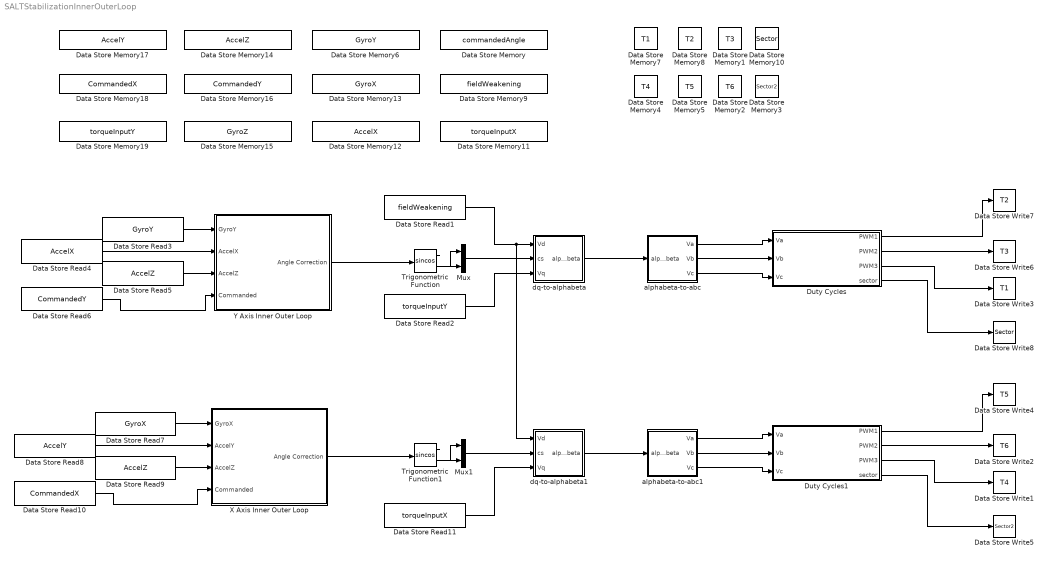
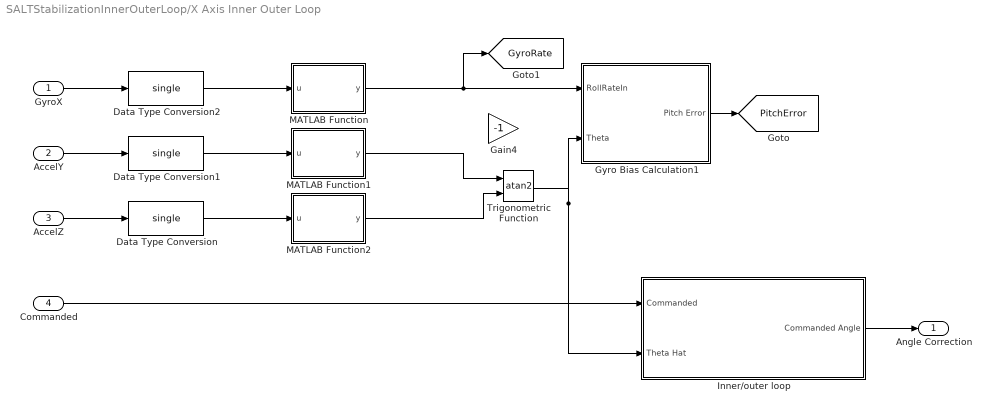
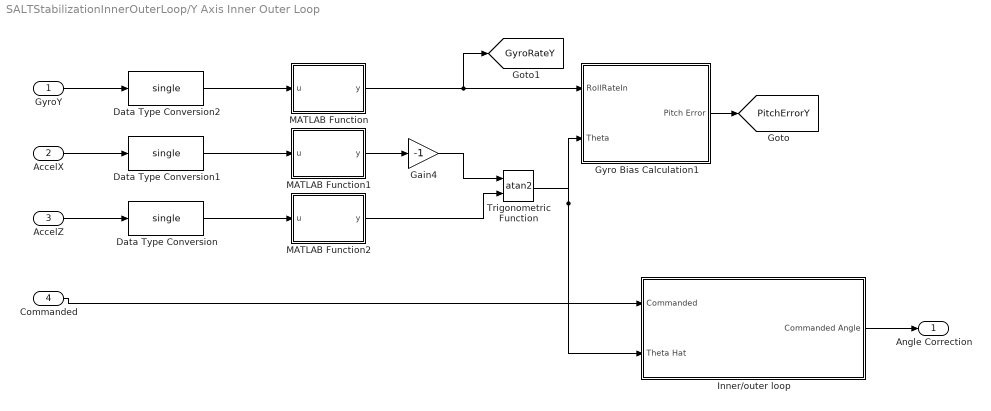
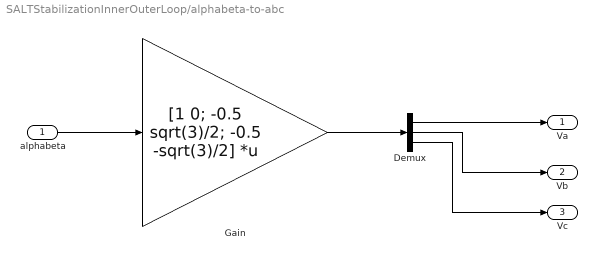
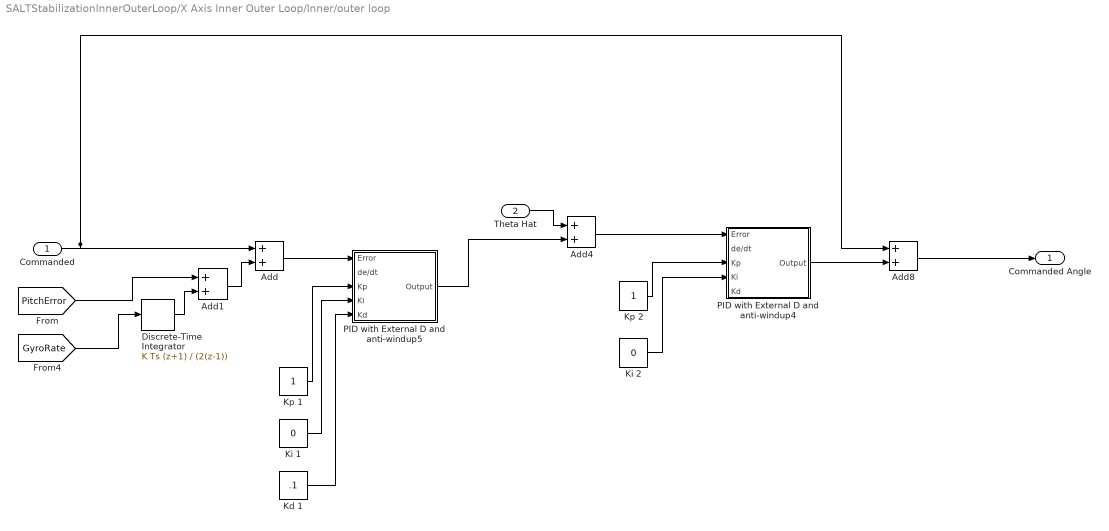
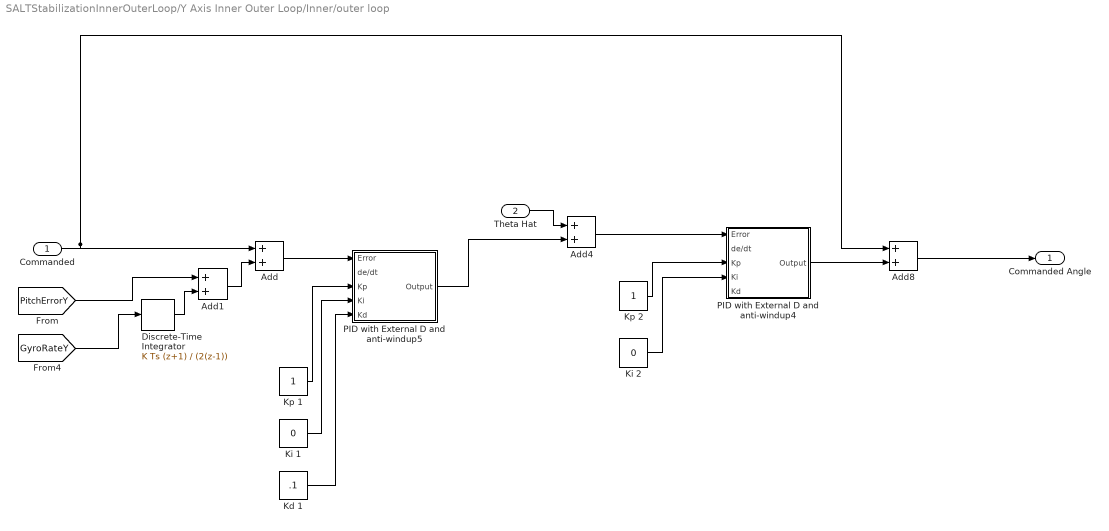
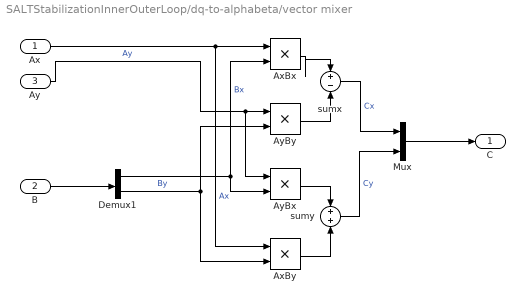
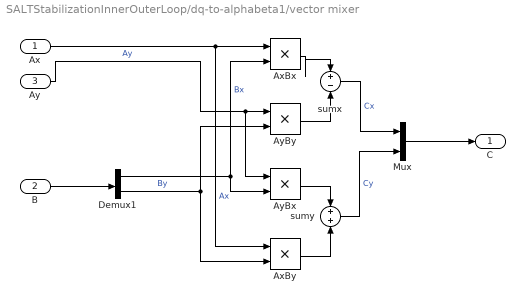
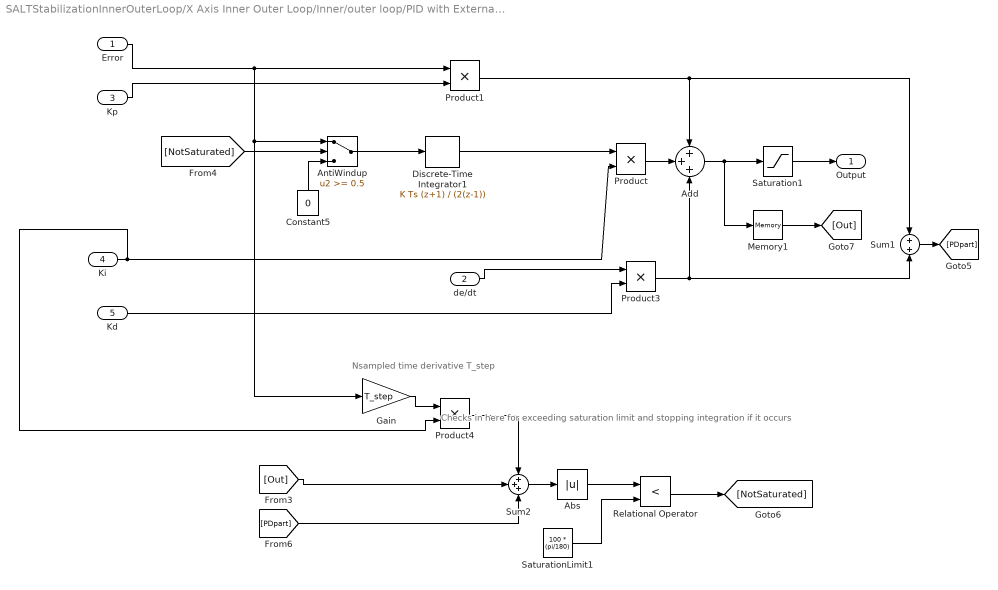
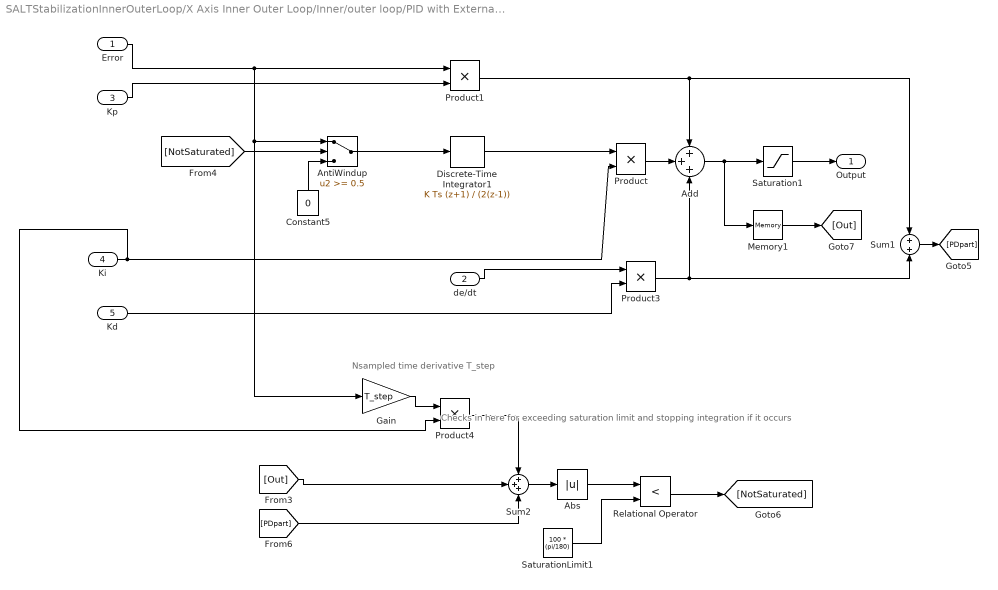
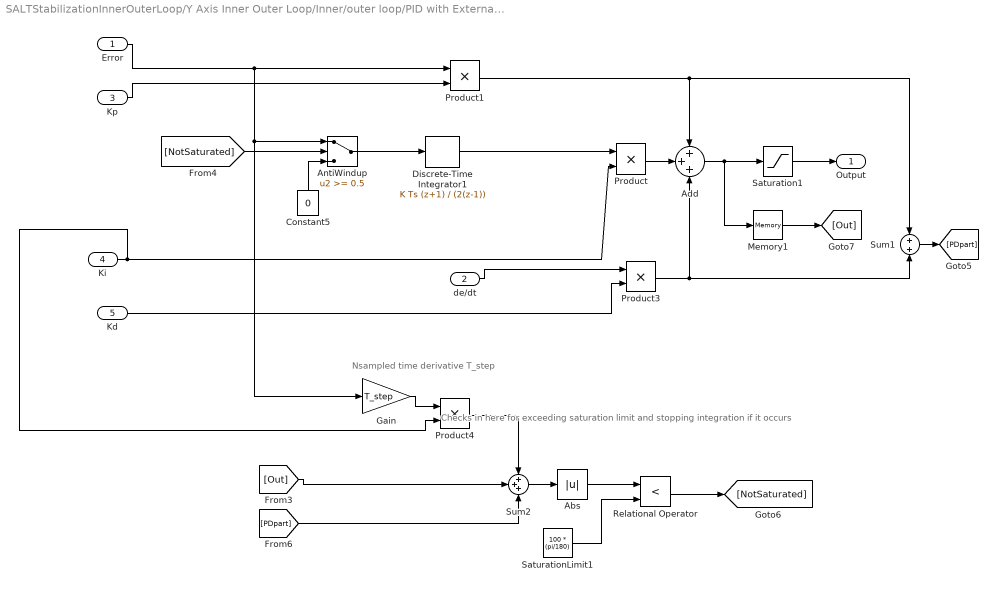
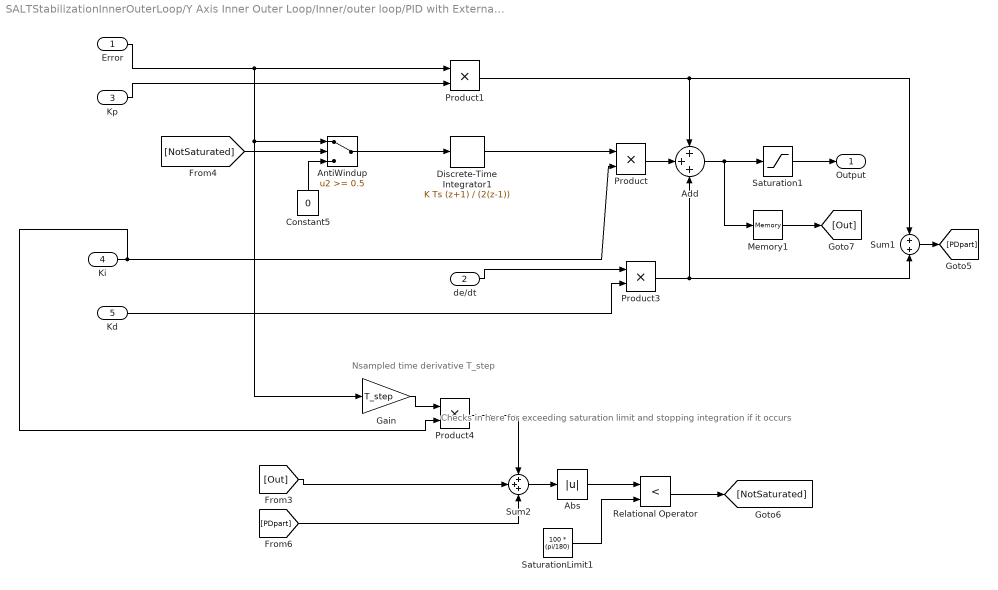
== system SALTStabilizationInnerOuterLoop/alphabeta-to-abc1 ==
  alphabeta : Inport
  Demux : Demux  Outputs=3
  Gain : Gain  Gain=[1 0; -0.5 sqrt(3)/2; -0.5 -sqrt(3)/2]  Multiplication=Matrix(K*u)  OutDataTypeStr=single
  Va : Outport  OutDataTypeStr=single
  Vb : Outport  Port=2  OutDataTypeStr=single
  Vc : Outport  Port=3  OutDataTypeStr=single
  wires:
  alphabeta/1 -> Gain/1
  Gain/1 -> Demux/1
  Demux/1 -> Va/1
  Demux/2 -> Vb/1
  Demux/3 -> Vc/1

== system SALTStabilizationInnerOuterLoop/dq-to-alphabeta ==
  Vd : Inport
  cs : Inport  Port=2
  Vq : Inport  Port=3
  vector mixer : Subsystem  AncestorBlock=MicrochipMotorControlTools/vector mixer
  alphabeta : Outport
  wires:
  cs/1 -> vector mixer/2(B)
  Vd/1 -> vector mixer/1(Ax)
  vector mixer/1(C) -> alphabeta/1
  Vq/1 -> vector mixer/3(Ay)

== system SALTStabilizationInnerOuterLoop/dq-to-alphabeta1 ==
  Vd : Inport
  cs : Inport  Port=2
  Vq : Inport  Port=3
  vector mixer : Subsystem  AncestorBlock=MicrochipMotorControlTools/vector mixer
  alphabeta : Outport
  wires:
  cs/1 -> vector mixer/2(B)
  Vd/1 -> vector mixer/1(Ax)
  vector mixer/1(C) -> alphabeta/1
  Vq/1 -> vector mixer/3(Ay)

== system SALTStabilizationInnerOuterLoop/X Axis Inner Outer Loop/Gyro Bias Calculation1 ==
  RollRateIn : Inport
  Theta : Inport  Port=2
  Add : Sum  Inputs=+-
  Discrete-Time Integrator : DiscreteIntegrator  IntegratorMethod=Integration: Trapezoidal  SampleTime=T_step  UpperSaturationLimit=1  LowerSaturationLimit=-1  ICPrevOutput=DiscIntNeverNeededParam  ICPrevScaledInput=DiscIntNeverNeededParam
  Pitch Error : Outport
  wires:
  RollRateIn/1 -> Discrete-Time Integrator/1
  Add/1 -> Pitch Error/1
  Discrete-Time Integrator/1 -> Add/1
  Theta/1 -> Add/2

== system SALTStabilizationInnerOuterLoop/Y Axis Inner Outer Loop/Gyro Bias Calculation1 ==
  RollRateIn : Inport
  Theta : Inport  Port=2
  Add : Sum  Inputs=+-
  Discrete-Time Integrator : DiscreteIntegrator  IntegratorMethod=Integration: Trapezoidal  SampleTime=T_step  UpperSaturationLimit=1  LowerSaturationLimit=-1  ICPrevOutput=DiscIntNeverNeededParam  ICPrevScaledInput=DiscIntNeverNeededParam
  Pitch Error : Outport
  wires:
  RollRateIn/1 -> Discrete-Time Integrator/1
  Add/1 -> Pitch Error/1
  Discrete-Time Integrator/1 -> Add/1
  Theta/1 -> Add/2

== matlab function Y Axis Inner Outer Loop/MATLAB Function1 ==
function y = fcn(u)
%#codegen

y = u/32.8;

== matlab function Y Axis Inner Outer Loop/MATLAB Function ==
function y = fcn(u)
%#codegen

y = ((u/131) * (pi/180))*5;

== matlab function Y Axis Inner Outer Loop/MATLAB Function2 ==
function y = fcn(u)
%#codegen

y = u/32.8;

== matlab function X Axis Inner Outer Loop/MATLAB Function ==
function y = fcn(u)
%#codegen

y = ((u/131) * (pi/180))*5;

== matlab function X Axis Inner Outer Loop/MATLAB Function1 ==
function y = fcn(u)
%#codegen

y = u/32.8;

== matlab function X Axis Inner Outer Loop/MATLAB Function2 ==
function y = fcn(u)
%#codegen

y = u/32.8;

== matlab function Duty Cycles ==
function [PWM1, PWM2, PWM3, sector]  = DutyCycleCalc(Va, Vb, Vc)
%#codegen
PWM = single(100);

Ta = single(0);

if (Va >= 0)
    if (Vb >= 0)
        %Sector 3, 0 - 60 Degrees
        T1 = Vb;
        T2 = Va;
    
        T1 = T1*PWM;
        T2 = T2*PWM;
        Tc = (PWM-T1-T2)/2;
        Tb = Ta + T1;
        Ta = Tb + T2;
    
        PWM1 = single(0);
        PWM2 = Tb;
        PWM3 = Ta;
        sector = single(3);
    else
        if (Vc >= 0)
           %Sector 5, 120 - 180 Degrees
            T1 = Va;
            T2 = Vc;
    
            T1 = T1*PWM;
            T2 = T2*PWM;
            Tc = (PWM-T1-T2)/2;
            Tb = Ta + T1;
            Ta = Tb + T2;
    
            PWM1 = Ta;
            PWM2 = single(0);
            PWM3 = Tb;
            sector = single(5);
        else
            %Sector 1, 60 - 120 Degrees
            T1 = -Vb;
            T2 = -Vc;
    
            T1 = T1*PWM;
            T2 = T2*PWM;
            Tc = (PWM-T1-T2)/2;
            Tb = Ta + T1;
            Ta = Tb + T2;
    
            PWM1 = Tb;
            PWM2 = single(0);
            PWM3 = Ta;
            sector = single(1);
        end
    end
else
    if (Vb >= 0)
        if (Vc >= 0)
            %Sector 6, 240 - 300 Degrees
            T1 = Vc;
            T2 = Vb;
    
            T1 = T1*PWM;
            T2 = T2*PWM;
            Tc = (PWM-T1-T2)/2;
            Tb = Ta + T1;
            Ta = Tb + T2;
    
            PWM1 = Tb;
            PWM2 = Ta;
            PWM3 = single(0);
            sector = single(6);
        else
            %Sector 2, 300 - 0 Degrees
            T1 = -Vc;
            T2 = -Va;
    
            T1 = T1*PWM;
            T2 = T2*PWM;
            Tc = (PWM-T1-T2)/2;
            Tb = Ta + T1;
            Ta = Tb + T2;
    
            PWM1 = single(0);
            PWM2 = Ta;
            PWM3 = Tb;
            sector = single(2);
        end
    else
        %Sector 4, 180 - 240 Degrees
        T1 = -Va;
        T2 = -Vb;
    
        T1 = T1*PWM;
        T2 = T2*PWM;
        Tc = (PWM-T1-T2)/2;
        Tb = Ta + T1;
        Ta = Tb + T2;
    
        PWM1 = Ta;
        PWM2 = Tb;
        PWM3 = single(0);
        sector = single(4);
    end
end

end

== matlab function Duty Cycles1 ==
function [PWM1, PWM2, PWM3, sector]  = DutyCycleCalc(Va, Vb, Vc)
%#codegen
PWM = single(100);

Ta = single(0);

if (Va >= 0)
    if (Vb >= 0)
        %Sector 3, 0 - 60 Degrees
        T1 = Vb;
        T2 = Va;
    
        T1 = T1*PWM;
        T2 = T2*PWM;
        Tc = (PWM-T1-T2)/2;
        Tb = Ta + T1;
        Ta = Tb + T2;
    
        PWM1 = single(0);
        PWM2 = Tb;
        PWM3 = Ta;
        sector = single(3);
    else
        if (Vc >= 0)
           %Sector 5, 120 - 180 Degrees
            T1 = Va;
            T2 = Vc;
    
            T1 = T1*PWM;
            T2 = T2*PWM;
            Tc = (PWM-T1-T2)/2;
            Tb = Ta + T1;
            Ta = Tb + T2;
    
            PWM1 = Ta;
            PWM2 = single(0);
            PWM3 = Tb;
            sector = single(5);
        else
            %Sector 1, 60 - 120 Degrees
            T1 = -Vb;
            T2 = -Vc;
    
            T1 = T1*PWM;
            T2 = T2*PWM;
            Tc = (PWM-T1-T2)/2;
            Tb = Ta + T1;
            Ta = Tb + T2;
    
            PWM1 = Tb;
            PWM2 = single(0);
            PWM3 = Ta;
            sector = single(1);
        end
    end
else
    if (Vb >= 0)
        if (Vc >= 0)
            %Sector 6, 240 - 300 Degrees
            T1 = Vc;
            T2 = Vb;
    
            T1 = T1*PWM;
            T2 = T2*PWM;
            Tc = (PWM-T1-T2)/2;
            Tb = Ta + T1;
            Ta = Tb + T2;
    
            PWM1 = Tb;
            PWM2 = Ta;
            PWM3 = single(0);
            sector = single(6);
        else
            %Sector 2, 300 - 0 Degrees
            T1 = -Vc;
            T2 = -Va;
    
            T1 = T1*PWM;
            T2 = T2*PWM;
            Tc = (PWM-T1-T2)/2;
            Tb = Ta + T1;
            Ta = Tb + T2;
    
            PWM1 = single(0);
            PWM2 = Ta;
            PWM3 = Tb;
            sector = single(2);
        end
    else
        %Sector 4, 180 - 240 Degrees
        T1 = -Va;
        T2 = -Vb;
    
        T1 = T1*PWM;
        T2 = T2*PWM;
        Tc = (PWM-T1-T2)/2;
        Tb = Ta + T1;
        Ta = Tb + T2;
    
        PWM1 = Ta;
        PWM2 = Tb;
        PWM3 = single(0);
        sector = single(4);
    end
end

end

/*
 * File: SALTStabilizationInnerOuterLoop.c
 *
 * Code generated for Simulink model 'SALTStabilizationInnerOuterLoop'.
 *
 * Model version                  : 1.10
 * Simulink Coder version         : 8.1 (R2011b) 08-Jul-2011
 * TLC version                    : 8.1 (Jul  9 2011)
 * C/C++ source code generated on : Thu Aug 15 17:30:24 2013
 *
 * Target selection: ert.tlc
 * Embedded hardware selection: Microchip->dsPIC
 * Code generation objectives: Unspecified
 * Validation result: Not run
 */

#include "SALTStabilizationInnerOuterLoop.h"
#include "SALTStabilizationInnerOuterLoop_private.h"

/* Exported block states */
real32_T commandedAngle;               /* '<Root>/Data Store Memory' */
real32_T torqueInputX;                 /* '<Root>/Data Store Memory11' */
real32_T AccelX;                       /* '<Root>/Data Store Memory12' */
real32_T GyroX;                        /* '<Root>/Data Store Memory13' */
real32_T AccelZ;                       /* '<Root>/Data Store Memory14' */
real32_T GyroZ;                        /* '<Root>/Data Store Memory15' */
real32_T CommandedY;                   /* '<Root>/Data Store Memory16' */
real32_T AccelY;                       /* '<Root>/Data Store Memory17' */
real32_T CommandedX;                   /* '<Root>/Data Store Memory18' */
real32_T torqueInputY;                 /* '<Root>/Data Store Memory19' */
real32_T GyroY;                        /* '<Root>/Data Store Memory6' */
real32_T fieldWeakening;               /* '<Root>/Data Store Memory9' */

/* Block signals (auto storage) */
BlockIO_SALTStabilizationInnerO SALTStabilizationInnerOuterLo_B;

/* Block states (auto storage) */
D_Work_SALTStabilizationInnerOu SALTStabilizationInnerOut_DWork;

/* Real-time model */
RT_MODEL_SALTStabilizationInner SALTStabilizationInnerOuterL_M_;
RT_MODEL_SALTStabilizationInner *const SALTStabilizationInnerOuterL_M =
  &SALTStabilizationInnerOuterL_M_;

/*
 * Output and update for atomic system:
 *    '<Root>/Duty Cycles'
 *    '<Root>/Duty Cycles1'
 */
void SALTStabilizationInn_DutyCycles(real32_T rtu_Va, real32_T rtu_Vb, real32_T
  rtu_Vc, rtB_DutyCycles_SALTStabilizatio *localB)
{
  real32_T T;

  /* MATLAB Function 'Duty Cycles': '<S1>:1' */
  /* '<S1>:1:5' */
  if (rtu_Va >= 0.0F) {
    /* '<S1>:1:7' */
    if (rtu_Vb >= 0.0F) {
      /* '<S1>:1:8' */
      /* Sector 3, 0 - 60 Degrees */
      /* '<S1>:1:13' */
      T = rtu_Vb * 100.0F;

      /* '<S1>:1:14' */
      /* '<S1>:1:16' */
      /* '<S1>:1:17' */
      /* '<S1>:1:19' */
      localB->PWM1 = 0.0F;

      /* '<S1>:1:20' */
      localB->PWM2 = T;

      /* '<S1>:1:21' */
      localB->PWM3 = rtu_Va * 100.0F + T;

      /* '<S1>:1:22' */
      localB->sector = 3.0F;
    } else if (rtu_Vc >= 0.0F) {
      /* '<S1>:1:24' */
      /* Sector 5, 120 - 180 Degrees */
      /* '<S1>:1:29' */
      T = rtu_Va * 100.0F;

      /* '<S1>:1:30' */
      /* '<S1>:1:32' */
      /* '<S1>:1:33' */
      /* '<S1>:1:35' */
      localB->PWM1 = rtu_Vc * 100.0F + T;

      /* '<S1>:1:36' */
      localB->PWM2 = 0.0F;

      /* '<S1>:1:37' */
      localB->PWM3 = T;

      /* '<S1>:1:38' */
      localB->sector = 5.0F;
    } else {
      /* Sector 1, 60 - 120 Degrees */
      /* '<S1>:1:41' */
      /* '<S1>:1:42' */
      /* '<S1>:1:44' */
      T = -rtu_Vb * 100.0F;

      /* '<S1>:1:45' */
      /* '<S1>:1:47' */
      /* '<S1>:1:48' */
      /* '<S1>:1:50' */
      localB->PWM1 = T;

      /* '<S1>:1:51' */
      localB->PWM2 = 0.0F;

      /* '<S1>:1:52' */
      localB->PWM3 = -rtu_Vc * 100.0F + T;

      /* '<S1>:1:53' */
      localB->sector = 1.0F;
    }
  } else if (rtu_Vb >= 0.0F) {
    /* '<S1>:1:57' */
    if (rtu_Vc >= 0.0F) {
      /* '<S1>:1:58' */
      /* Sector 6, 240 - 300 Degrees */
      /* '<S1>:1:63' */
      T = rtu_Vc * 100.0F;

      /* '<S1>:1:64' */
      /* '<S1>:1:66' */
      /* '<S1>:1:67' */
      /* '<S1>:1:69' */
      localB->PWM1 = T;

      /* '<S1>:1:70' */
      localB->PWM2 = rtu_Vb * 100.0F + T;

      /* '<S1>:1:71' */
      localB->PWM3 = 0.0F;

      /* '<S1>:1:72' */
      localB->sector = 6.0F;
    } else {
      /* Sector 2, 300 - 0 Degrees */
      /* '<S1>:1:75' */
      /* '<S1>:1:76' */
      /* '<S1>:1:78' */
      T = -rtu_Vc * 100.0F;

      /* '<S1>:1:79' */
      /* '<S1>:1:81' */
      /* '<S1>:1:82' */
      /* '<S1>:1:84' */
      localB->PWM1 = 0.0F;

      /* '<S1>:1:85' */
      localB->PWM2 = -rtu_Va * 100.0F + T;

      /* '<S1>:1:86' */
      localB->PWM3 = T;

      /* '<S1>:1:87' */
      localB->sector = 2.0F;
    }
  } else {
    /* Sector 4, 180 - 240 Degrees */
    /* '<S1>:1:91' */
    /* '<S1>:1:92' */
    /* '<S1>:1:94' */
    T = -rtu_Va * 100.0F;

    /* '<S1>:1:95' */
    /* '<S1>:1:97' */
    /* '<S1>:1:98' */
    /* '<S1>:1:100' */
    localB->PWM1 = -rtu_Vb * 100.0F + T;

    /* '<S1>:1:101' */
    localB->PWM2 = T;

    /* '<S1>:1:102' */
    localB->PWM3 = 0.0F;

    /* '<S1>:1:103' */
    localB->sector = 4.0F;
  }
}

/*
 * Output and update for atomic system:
 *    '<S3>/MATLAB Function'
 *    '<S4>/MATLAB Function'
 */
void SALTStabilizatio_MATLABFunction(real32_T rtu_u,
  rtB_MATLABFunction_SALTStabiliz *localB)
{
  /* MATLAB Function 'X Axis Inner Outer Loop/MATLAB Function': '<S11>:1' */
  /* '<S11>:1:4' */
  localB->y = rtu_u / 131.0F * 0.0174532924F * 5.0F;
}

/*
 * Output and update for atomic system:
 *    '<S3>/MATLAB Function1'
 *    '<S3>/MATLAB Function2'
 *    '<S4>/MATLAB Function1'
 *    '<S4>/MATLAB Function2'
 */
void SALTStabilizati_MATLABFunction1(real32_T rtu_u,
  rtB_MATLABFunction1_SALTStabili *localB)
{
  /* MATLAB Function 'X Axis Inner Outer Loop/MATLAB Function1': '<S12>:1' */
  /* '<S12>:1:4' */
  localB->y = rtu_u / 32.8F;
}

real32_T rt_atan2f_snf(real32_T u0, real32_T u1)
{
  real32_T y;
  if (rtIsNaNF(u0) || rtIsNaNF(u1)) {
    y = (rtNaNF);
  } else if (rtIsInfF(u0) && rtIsInfF(u1)) {
    y = (real32_T)atan2(u0 > 0.0F ? 1.0F : -1.0F, u1 > 0.0F ? 1.0F : -1.0F);
  } else if (u1 == 0.0F) {
    if (u0 > 0.0F) {
      y = RT_PIF / 2.0F;
    } else if (u0 < 0.0F) {
      y = -(RT_PIF / 2.0F);
    } else {
      y = 0.0F;
    }
  } else {
    y = (real32_T)atan2(u0, u1);
  }

  return y;
}

/* Model step function */
void SALTStabilizationInnerOuterLoop_step(void)
{
  /* local block i/o variables */
  real_T rtb_AntiWindup;
  real_T rtb_AntiWindup_a;
  real_T rtb_AntiWindup_i;
  real_T rtb_AntiWindup_m;
  real32_T rtb_DataStoreRead8;
  real32_T rtb_DataStoreRead9;
  real32_T rtb_DataStoreRead7;
  real32_T rtb_Gain_i[3];
  real32_T rtb_DataStoreRead4;
  real32_T rtb_DataStoreRead5;
  real32_T rtb_DataStoreRead3;
  real32_T rtb_Gain_m[3];
  real32_T rtb_DataStoreRead1;
  real32_T rtb_Gain_c;
  real32_T rtb_Cy;
  real32_T rtb_AxBy;
  real_T rtb_Product3;
  real32_T rtb_Cx;
  real_T rtb_TrigonometricFunction_o2;
  real_T rtb_TrigonometricFunction_o1;
  real_T rtb_Add;
  real_T rtb_Add_h;
  real_T rtb_Add_p;
  real32_T DiscreteTimeIntegrator;
  real32_T DiscreteTimeIntegrator_j;
  real_T DiscreteTimeIntegrator_0;
  real_T DiscreteTimeIntegrator1_e;
  real32_T DiscreteTimeIntegrator_c;
  real_T DiscreteTimeIntegrator1_k;
  real_T DiscreteTimeIntegrator1_f;
  int16_T i;

  /* DataStoreRead: '<Root>/Data Store Read1' */
  rtb_DataStoreRead1 = fieldWeakening;

  /* DataStoreRead: '<Root>/Data Store Read10' */
  rtb_Gain_c = CommandedX;

  /* DataStoreRead: '<Root>/Data Store Read8' */
  rtb_DataStoreRead8 = AccelY;

  /* MATLAB Function: '<S3>/MATLAB Function1' */
  SALTStabilizati_MATLABFunction1(rtb_DataStoreRead8,
    &SALTStabilizationInnerOuterLo_B.sf_MATLABFunction1);

  /* DataStoreRead: '<Root>/Data Store Read9' */
  rtb_DataStoreRead9 = AccelZ;

  /* MATLAB Function: '<S3>/MATLAB Function2' */
  SALTStabilizati_MATLABFunction1(rtb_DataStoreRead9,
    &SALTStabilizationInnerOuterLo_B.sf_MATLABFunction2);

  /* Trigonometry: '<S3>/Trigonometric Function' */
  rtb_Cy = rt_atan2f_snf(SALTStabilizationInnerOuterLo_B.sf_MATLABFunction1.y,
    SALTStabilizationInnerOuterLo_B.sf_MATLABFunction2.y);

  /* DataStoreRead: '<Root>/Data Store Read7' */
  rtb_DataStoreRead7 = GyroX;

  /* MATLAB Function: '<S3>/MATLAB Function' */
  SALTStabilizatio_MATLABFunction(rtb_DataStoreRead7,
    &SALTStabilizationInnerOuterLo_B.sf_MATLABFunction);

  /* DiscreteIntegrator: '<S9>/Discrete-Time Integrator' */
  if (SALTStabilizationInnerOut_DWork.DiscreteTimeIntegrator_SYSTEM_E != 0) {
    DiscreteTimeIntegrator =
      SALTStabilizationInnerOut_DWork.DiscreteTimeIntegrator_DSTATE;
  } else {
    DiscreteTimeIntegrator =
      SALTStabilizationInnerOuterLo_P.DiscreteTimeIntegrator_gainval *
      SALTStabilizationInnerOuterLo_B.sf_MATLABFunction.y +
      SALTStabilizationInnerOut_DWork.DiscreteTimeIntegrator_DSTATE;
  }

  /* End of DiscreteIntegrator: '<S9>/Discrete-Time Integrator' */

  /* DiscreteIntegrator: '<S10>/Discrete-Time Integrator' */
  if (SALTStabilizationInnerOut_DWork.DiscreteTimeIntegrator_SYSTEM_j != 0) {
    DiscreteTimeIntegrator_j =
      SALTStabilizationInnerOut_DWork.DiscreteTimeIntegrator_DSTATE_c;
  } else {
    DiscreteTimeIntegrator_j =
      SALTStabilizationInnerOuterLo_P.DiscreteTimeIntegrator_gainva_j *
      SALTStabilizationInnerOuterLo_B.sf_MATLABFunction.y +
      SALTStabilizationInnerOut_DWork.DiscreteTimeIntegrator_DSTATE_c;
  }

  /* End of DiscreteIntegrator: '<S10>/Discrete-Time Integrator' */

  /* Sum: '<S10>/Add' incorporates:
   *  Sum: '<S10>/Add1'
   *  Sum: '<S9>/Add'
   */
  rtb_AxBy = ((DiscreteTimeIntegrator - rtb_Cy) + DiscreteTimeIntegrator_j) +
    rtb_Gain_c;

  /* Product: '<S15>/Product1' incorporates:
   *  Constant: '<S10>/Kp 1'
   */
  rtb_Product3 = (real_T)rtb_AxBy * SALTStabilizationInnerOuterLo_P.Kp1_Value;

  /* Product: '<S15>/Product3' incorporates:
   *  Constant: '<S10>/Kd 1'
   */
  rtb_TrigonometricFunction_o1 = 0.0 * SALTStabilizationInnerOuterLo_P.Kd1_Value;

  /* Switch: '<S15>/AntiWindup' incorporates:
   *  Abs: '<S15>/Abs'
   *  Constant: '<S10>/Ki 1'
   *  Constant: '<S15>/Constant5'
   *  Constant: '<S15>/SaturationLimit1'
   *  Gain: '<S15>/Gain'
   *  Memory: '<S15>/Memory1'
   *  Product: '<S15>/Product4'
   *  RelationalOperator: '<S15>/Relational Operator'
   *  Sum: '<S15>/Sum1'
   *  Sum: '<S15>/Sum2'
   */
  if (fabs(((real_T)(SALTStabilizationInnerOuterLo_P.Gain_Gain_o * rtb_AxBy) *
            SALTStabilizationInnerOuterLo_P.Ki1_Value +
            SALTStabilizationInnerOut_DWork.Memory1_PreviousInput) +
           (rtb_Product3 + rtb_TrigonometricFunction_o1)) <
      SALTStabilizationInnerOuterLo_P.SaturationLimit1_Value) {
    rtb_AntiWindup = rtb_AxBy;
  } else {
    rtb_AntiWindup = SALTStabilizationInnerOuterLo_P.Constant5_Value_g;
  }

  /* End of Switch: '<S15>/AntiWindup' */

  /* DiscreteIntegrator: '<S15>/Discrete-Time Integrator1' */
  if (SALTStabilizationInnerOut_DWork.DiscreteTimeIntegrator1_SYSTEM_ != 0) {
    DiscreteTimeIntegrator_0 =
      SALTStabilizationInnerOut_DWork.DiscreteTimeIntegrator1_DSTATE;
  } else {
    DiscreteTimeIntegrator_0 =
      SALTStabilizationInnerOuterLo_P.DiscreteTimeIntegrator1_gainval *
      rtb_AntiWindup +
      SALTStabilizationInnerOut_DWork.DiscreteTimeIntegrator1_DSTATE;
  }

  /* End of DiscreteIntegrator: '<S15>/Discrete-Time Integrator1' */

  /* Sum: '<S15>/Add' incorporates:
   *  Constant: '<S10>/Ki 1'
   *  Product: '<S15>/Product'
   */
  rtb_Add = (DiscreteTimeIntegrator_0 *
             SALTStabilizationInnerOuterLo_P.Ki1_Value + rtb_Product3) +
    rtb_TrigonometricFunction_o1;

  /* Sum: '<S10>/Add4' incorporates:
   *  Saturate: '<S15>/Saturation1'
   */
  rtb_TrigonometricFunction_o1 = (rtb_Add >=
    SALTStabilizationInnerOuterLo_P.Saturation1_UpperSat ?
    SALTStabilizationInnerOuterLo_P.Saturation1_UpperSat : rtb_Add <=
    SALTStabilizationInnerOuterLo_P.Saturation1_LowerSat ?
    SALTStabilizationInnerOuterLo_P.Saturation1_LowerSat : rtb_Add) + (real_T)
    rtb_Cy;

  /* Product: '<S14>/Product1' incorporates:
   *  Constant: '<S10>/Kp 2'
   */
  rtb_TrigonometricFunction_o2 = rtb_TrigonometricFunction_o1 *
    SALTStabilizationInnerOuterLo_P.Kp2_Value;

  /* Product: '<S14>/Product3' */
  rtb_Product3 = 0.0 * 0.0;

  /* Switch: '<S14>/AntiWindup' incorporates:
   *  Abs: '<S14>/Abs'
   *  Constant: '<S10>/Ki 2'
   *  Constant: '<S14>/Constant5'
   *  Constant: '<S14>/SaturationLimit1'
   *  Gain: '<S14>/Gain'
   *  Memory: '<S14>/Memory1'
   *  Product: '<S14>/Product4'
   *  RelationalOperator: '<S14>/Relational Operator'
   *  Sum: '<S14>/Sum1'
   *  Sum: '<S14>/Sum2'
   */
  if (fabs((SALTStabilizationInnerOuterLo_P.Gain_Gain *
            rtb_TrigonometricFunction_o1 *
            SALTStabilizationInnerOuterLo_P.Ki2_Value +
            SALTStabilizationInnerOut_DWork.Memory1_PreviousInput_i) +
           (rtb_TrigonometricFunction_o2 + rtb_Product3)) <
      SALTStabilizationInnerOuterLo_P.SaturationLimit1_Value_l) {
    rtb_AntiWindup_a = rtb_TrigonometricFunction_o1;
  } else {
    rtb_AntiWindup_a = SALTStabilizationInnerOuterLo_P.Constant5_Value;
  }

  /* End of Switch: '<S14>/AntiWindup' */

  /* DiscreteIntegrator: '<S14>/Discrete-Time Integrator1' */
  if (SALTStabilizationInnerOut_DWork.DiscreteTimeIntegrator1_SYSTE_e != 0) {
    DiscreteTimeIntegrator1_e =
      SALTStabilizationInnerOut_DWork.DiscreteTimeIntegrator1_DSTAT_f;
  } else {
    DiscreteTimeIntegrator1_e =
      SALTStabilizationInnerOuterLo_P.DiscreteTimeIntegrator1_gainv_l *
      rtb_AntiWindup_a +
      SALTStabilizationInnerOut_DWork.DiscreteTimeIntegrator1_DSTAT_f;
  }

  /* End of DiscreteIntegrator: '<S14>/Discrete-Time Integrator1' */

  /* Sum: '<S14>/Add' incorporates:
   *  Constant: '<S10>/Ki 2'
   *  Product: '<S14>/Product'
   */
  rtb_Add_h = (DiscreteTimeIntegrator1_e *
               SALTStabilizationInnerOuterLo_P.Ki2_Value +
               rtb_TrigonometricFunction_o2) + rtb_Product3;

  /* Sum: '<S10>/Add8' incorporates:
   *  Saturate: '<S14>/Saturation1'
   */
  rtb_TrigonometricFunction_o1 = (rtb_Add_h >=
    SALTStabilizationInnerOuterLo_P.Saturation1_UpperSat_i ?
    SALTStabilizationInnerOuterLo_P.Saturation1_UpperSat_i : rtb_Add_h <=
    SALTStabilizationInnerOuterLo_P.Saturation1_LowerSat_b ?
    SALTStabilizationInnerOuterLo_P.Saturation1_LowerSat_b : rtb_Add_h) +
    (real_T)rtb_Gain_c;

  /* Trigonometry: '<Root>/Trigonometric Function1' */
  rtb_TrigonometricFunction_o2 = sin(rtb_TrigonometricFunction_o1);
  rtb_TrigonometricFunction_o1 = cos(rtb_TrigonometricFunction_o1);

  /* SignalConversion: '<S6>/TmpSignal ConversionAtGainInport1' incorporates:
   *  DataStoreRead: '<Root>/Data Store Read11'
   *  Product: '<S24>/AxBx'
   *  Product: '<S24>/AxBy'
   *  Product: '<S24>/AyBx'
   *  Product: '<S24>/AyBy'
   *  Sum: '<S24>/sumx'
   *  Sum: '<S24>/sumy'
   *  Trigonometry: '<Root>/Trigonometric Function1'
   */
  rtb_Cy = (real32_T)((real_T)rtb_DataStoreRead1 * rtb_TrigonometricFunction_o1)
    - (real32_T)((real_T)torqueInputX * rtb_TrigonometricFunction_o2);
  rtb_AxBy = (real32_T)((real_T)torqueInputX * rtb_TrigonometricFunction_o1) +
    (real32_T)((real_T)rtb_DataStoreRead1 * rtb_TrigonometricFunction_o2);

  /* Gain: '<S6>/Gain' */
  for (i = 0; i < 3; i++) {
    rtb_Gain_i[i] = 0.0F;
    rtb_Gain_i[i] += SALTStabilizationInnerOuterLo_P.Gain_Gain_a[i] * rtb_Cy;
    rtb_Gain_i[i] += SALTStabilizationInnerOuterLo_P.Gain_Gain_a[i + 3] *
      rtb_AxBy;
  }

  /* End of Gain: '<S6>/Gain' */

  /* MATLAB Function: '<Root>/Duty Cycles1' */
  SALTStabilizationInn_DutyCycles(rtb_Gain_i[0], rtb_Gain_i[1], rtb_Gain_i[2],
    &SALTStabilizationInnerOuterLo_B.sf_DutyCycles1);

  /* DataStoreWrite: '<Root>/Data Store Write1' */
  SALTStabilizationInnerOut_DWork.T4 =
    SALTStabilizationInnerOuterLo_B.sf_DutyCycles1.PWM3;

  /* DataStoreWrite: '<Root>/Data Store Write2' */
  SALTStabilizationInnerOut_DWork.T6 =
    SALTStabilizationInnerOuterLo_B.sf_DutyCycles1.PWM2;

  /* DataStoreRead: '<Root>/Data Store Read6' */
  rtb_Cx = CommandedY;

  /* DataStoreRead: '<Root>/Data Store Read4' */
  rtb_DataStoreRead4 = AccelX;

  /* MATLAB Function: '<S4>/MATLAB Function1' */
  SALTStabilizati_MATLABFunction1(rtb_DataStoreRead4,
    &SALTStabilizationInnerOuterLo_B.sf_MATLABFunction1_i);

  /* Gain: '<S4>/Gain4' */
  rtb_Gain_c = SALTStabilizationInnerOuterLo_P.Gain4_Gain *
    SALTStabilizationInnerOuterLo_B.sf_MATLABFunction1_i.y;

  /* DataStoreRead: '<Root>/Data Store Read5' */
  rtb_DataStoreRead5 = AccelZ;

  /* MATLAB Function: '<S4>/MATLAB Function2' */
  SALTStabilizati_MATLABFunction1(rtb_DataStoreRead5,
    &SALTStabilizationInnerOuterLo_B.sf_MATLABFunction2_b);

  /* Trigonometry: '<S4>/Trigonometric Function' */
  rtb_AxBy = rt_atan2f_snf(rtb_Gain_c,
    SALTStabilizationInnerOuterLo_B.sf_MATLABFunction2_b.y);

  /* DataStoreRead: '<Root>/Data Store Read3' */
  rtb_DataStoreRead3 = GyroY;

  /* MATLAB Function: '<S4>/MATLAB Function' */
  SALTStabilizatio_MATLABFunction(rtb_DataStoreRead3,
    &SALTStabilizationInnerOuterLo_B.sf_MATLABFunction_b);

  /* DiscreteIntegrator: '<S16>/Discrete-Time Integrator' */
  if (SALTStabilizationInnerOut_DWork.DiscreteTimeIntegrator_SYSTEM_g != 0) {
    rtb_Gain_c = SALTStabilizationInnerOut_DWork.DiscreteTimeIntegrator_DSTATE_f;
  } else {
    rtb_Gain_c = SALTStabilizationInnerOuterLo_P.DiscreteTimeIntegrator_gainva_p
      * SALTStabilizationInnerOuterLo_B.sf_MATLABFunction_b.y +
      SALTStabilizationInnerOut_DWork.DiscreteTimeIntegrator_DSTATE_f;
  }

  /* End of DiscreteIntegrator: '<S16>/Discrete-Time Integrator' */

  /* DiscreteIntegrator: '<S17>/Discrete-Time Integrator' */
  if (SALTStabilizationInnerOut_DWork.DiscreteTimeIntegrator_SYSTEM_n != 0) {
    DiscreteTimeIntegrator_c =
      SALTStabilizationInnerOut_DWork.DiscreteTimeIntegrator_DSTAT_ft;
  } else {
    DiscreteTimeIntegrator_c =
      SALTStabilizationInnerOuterLo_P.DiscreteTimeIntegrator_gainva_c *
      SALTStabilizationInnerOuterLo_B.sf_MATLABFunction_b.y +
      SALTStabilizationInnerOut_DWork.DiscreteTimeIntegrator_DSTAT_ft;
  }

  /* End of DiscreteIntegrator: '<S17>/Discrete-Time Integrator' */

  /* Sum: '<S17>/Add' incorporates:
   *  Sum: '<S16>/Add'
   *  Sum: '<S17>/Add1'
   */
  rtb_Cy = ((rtb_Gain_c - rtb_AxBy) + DiscreteTimeIntegrator_c) + rtb_Cx;

  /* Product: '<S22>/Product1' incorporates:
   *  Constant: '<S17>/Kp 1'
   */
  rtb_TrigonometricFunction_o1 = (real_T)rtb_Cy *
    SALTStabilizationInnerOuterLo_P.Kp1_Value_p;

  /* Product: '<S22>/Product3' incorporates:
   *  Constant: '<S17>/Kd 1'
   */
  rtb_Product3 = 0.0 * SALTStabilizationInnerOuterLo_P.Kd1_Value_n;

  /* Switch: '<S22>/AntiWindup' incorporates:
   *  Abs: '<S22>/Abs'
   *  Constant: '<S17>/Ki 1'
   *  Constant: '<S22>/Constant5'
   *  Constant: '<S22>/SaturationLimit1'
   *  Gain: '<S22>/Gain'
   *  Memory: '<S22>/Memory1'
   *  Product: '<S22>/Product4'
   *  RelationalOperator: '<S22>/Relational Operator'
   *  Sum: '<S22>/Sum1'
   *  Sum: '<S22>/Sum2'
   */
  if (fabs(((real_T)(SALTStabilizationInnerOuterLo_P.Gain_Gain_e * rtb_Cy) *
            SALTStabilizationInnerOuterLo_P.Ki1_Value_b +
            SALTStabilizationInnerOut_DWork.Memory1_PreviousInput_a) +
           (rtb_TrigonometricFunction_o1 + rtb_Product3)) <
      SALTStabilizationInnerOuterLo_P.SaturationLimit1_Value_d) {
    rtb_AntiWindup_i = rtb_Cy;
  } else {
    rtb_AntiWindup_i = SALTStabilizationInnerOuterLo_P.Constant5_Value_n;
  }

  /* End of Switch: '<S22>/AntiWindup' */

  /* DiscreteIntegrator: '<S22>/Discrete-Time Integrator1' */
  if (SALTStabilizationInnerOut_DWork.DiscreteTimeIntegrator1_SYSTE_c != 0) {
    DiscreteTimeIntegrator1_k =
      SALTStabilizationInnerOut_DWork.DiscreteTimeIntegrator1_DSTAT_j;
  } else {
    DiscreteTimeIntegrator1_k =
      SALTStabilizationInnerOuterLo_P.DiscreteTimeIntegrator1_gainv_d *
      rtb_AntiWindup_i +
      SALTStabilizationInnerOut_DWork.DiscreteTimeIntegrator1_DSTAT_j;
  }

  /* End of DiscreteIntegrator: '<S22>/Discrete-Time Integrator1' */

  /* Sum: '<S22>/Add' incorporates:
   *  Constant: '<S17>/Ki 1'
   *  Product: '<S22>/Product'
   */
  rtb_Add_p = (DiscreteTimeIntegrator1_k *
               SALTStabilizationInnerOuterLo_P.Ki1_Value_b +
               rtb_TrigonometricFunction_o1) + rtb_Product3;

  /* Sum: '<S17>/Add4' incorporates:
   *  Saturate: '<S22>/Saturation1'
   */
  rtb_TrigonometricFunction_o1 = (rtb_Add_p >=
    SALTStabilizationInnerOuterLo_P.Saturation1_UpperSat_ie ?
    SALTStabilizationInnerOuterLo_P.Saturation1_UpperSat_ie : rtb_Add_p <=
    SALTStabilizationInnerOuterLo_P.Saturation1_LowerSat_m ?
    SALTStabilizationInnerOuterLo_P.Saturation1_LowerSat_m : rtb_Add_p) +
    (real_T)rtb_AxBy;

  /* Product: '<S21>/Product1' incorporates:
   *  Constant: '<S17>/Kp 2'
   */
  rtb_TrigonometricFunction_o2 = rtb_TrigonometricFunction_o1 *
    SALTStabilizationInnerOuterLo_P.Kp2_Value_b;

  /* Product: '<S21>/Product3' */
  rtb_Product3 = 0.0 * 0.0;

  /* Switch: '<S21>/AntiWindup' incorporates:
   *  Abs: '<S21>/Abs'
   *  Constant: '<S17>/Ki 2'
   *  Constant: '<S21>/Constant5'
   *  Constant: '<S21>/SaturationLimit1'
   *  Gain: '<S21>/Gain'
   *  Memory: '<S21>/Memory1'
   *  Product: '<S21>/Product4'
   *  RelationalOperator: '<S21>/Relational Operator'
   *  Sum: '<S21>/Sum1'
   *  Sum: '<S21>/Sum2'
   */
  if (fabs((SALTStabilizationInnerOuterLo_P.Gain_Gain_j *
            rtb_TrigonometricFunction_o1 *
            SALTStabilizationInnerOuterLo_P.Ki2_Value_d +
            SALTStabilizationInnerOut_DWork.Memory1_PreviousInput_g) +
           (rtb_TrigonometricFunction_o2 + rtb_Product3)) <
      SALTStabilizationInnerOuterLo_P.SaturationLimit1_Value_o) {
    rtb_AntiWindup_m = rtb_TrigonometricFunction_o1;
  } else {
    rtb_AntiWindup_m = SALTStabilizationInnerOuterLo_P.Constant5_Value_a;
  }

  /* End of Switch: '<S21>/AntiWindup' */

  /* DiscreteIntegrator: '<S21>/Discrete-Time Integrator1' */
  if (SALTStabilizationInnerOut_DWork.DiscreteTimeIntegrator1_SYSTE_k != 0) {
    DiscreteTimeIntegrator1_f =
      SALTStabilizationInnerOut_DWork.DiscreteTimeIntegrator1_DSTAT_p;
  } else {
    DiscreteTimeIntegrator1_f =
      SALTStabilizationInnerOuterLo_P.DiscreteTimeIntegrator1_gainv_b *
      rtb_AntiWindup_m +
      SALTStabilizationInnerOut_DWork.DiscreteTimeIntegrator1_DSTAT_p;
  }

  /* End of DiscreteIntegrator: '<S21>/Discrete-Time Integrator1' */

  /* Sum: '<S21>/Add' incorporates:
   *  Constant: '<S17>/Ki 2'
   *  Product: '<S21>/Product'
   */
  rtb_Product3 += DiscreteTimeIntegrator1_f *
    SALTStabilizationInnerOuterLo_P.Ki2_Value_d + rtb_TrigonometricFunction_o2;

  /* Sum: '<S17>/Add8' incorporates:
   *  Saturate: '<S21>/Saturation1'
   */
  rtb_TrigonometricFunction_o1 = (rtb_Product3 >=
    SALTStabilizationInnerOuterLo_P.Saturation1_UpperSat_h ?
    SALTStabilizationInnerOuterLo_P.Saturation1_UpperSat_h : rtb_Product3 <=
    SALTStabilizationInnerOuterLo_P.Saturation1_LowerSat_k ?
    SALTStabilizationInnerOuterLo_P.Saturation1_LowerSat_k : rtb_Product3) +
    (real_T)rtb_Cx;

  /* Trigonometry: '<Root>/Trigonometric Function' */
  rtb_TrigonometricFunction_o2 = sin(rtb_TrigonometricFunction_o1);
  rtb_TrigonometricFunction_o1 = cos(rtb_TrigonometricFunction_o1);

  /* SignalConversion: '<S5>/TmpSignal ConversionAtGainInport1' incorporates:
   *  DataStoreRead: '<Root>/Data Store Read2'
   *  Product: '<S23>/AxBx'
   *  Product: '<S23>/AxBy'
   *  Product: '<S23>/AyBx'
   *  Product: '<S23>/AyBy'
   *  Sum: '<S23>/sumx'
   *  Sum: '<S23>/sumy'
   *  Trigonometry: '<Root>/Trigonometric Function'
   */
  rtb_Cy = (real32_T)((real_T)rtb_DataStoreRead1 * rtb_TrigonometricFunction_o1)
    - (real32_T)((real_T)torqueInputY * rtb_TrigonometricFunction_o2);
  rtb_AxBy = (real32_T)((real_T)torqueInputY * rtb_TrigonometricFunction_o1) +
    (real32_T)((real_T)rtb_DataStoreRead1 * rtb_TrigonometricFunction_o2);

  /* Gain: '<S5>/Gain' */
  for (i = 0; i < 3; i++) {
    rtb_Gain_m[i] = 0.0F;
    rtb_Gain_m[i] += SALTStabilizationInnerOuterLo_P.Gain_Gain_c[i] * rtb_Cy;
    rtb_Gain_m[i] += SALTStabilizationInnerOuterLo_P.Gain_Gain_c[i + 3] *
      rtb_AxBy;
  }

  /* End of Gain: '<S5>/Gain' */

  /* MATLAB Function: '<Root>/Duty Cycles' */
  SALTStabilizationInn_DutyCycles(rtb_Gain_m[0], rtb_Gain_m[1], rtb_Gain_m[2],
    &SALTStabilizationInnerOuterLo_B.sf_DutyCycles);

  /* DataStoreWrite: '<Root>/Data Store Write3' */
  SALTStabilizationInnerOut_DWork.T1 =
    SALTStabilizationInnerOuterLo_B.sf_DutyCycles.PWM3;

  /* DataStoreWrite: '<Root>/Data Store Write4' */
  SALTStabilizationInnerOut_DWork.T5 =
    SALTStabilizationInnerOuterLo_B.sf_DutyCycles1.PWM1;

  /* DataStoreWrite: '<Root>/Data Store Write5' */
  SALTStabilizationInnerOut_DWork.Sector2 =
    SALTStabilizationInnerOuterLo_B.sf_DutyCycles1.sector;

  /* DataStoreWrite: '<Root>/Data Store Write6' */
  SALTStabilizationInnerOut_DWork.T3 =
    SALTStabilizationInnerOuterLo_B.sf_DutyCycles.PWM2;

  /* DataStoreWrite: '<Root>/Data Store Write7' */
  SALTStabilizationInnerOut_DWork.T2 =
    SALTStabilizationInnerOuterLo_B.sf_DutyCycles.PWM1;

  /* DataStoreWrite: '<Root>/Data Store Write8' */
  SALTStabilizationInnerOut_DWork.Sector =
    SALTStabilizationInnerOuterLo_B.sf_DutyCycles.sector;

  /* Update for DiscreteIntegrator: '<S9>/Discrete-Time Integrator' */
  SALTStabilizationInnerOut_DWork.DiscreteTimeIntegrator_SYSTEM_E = 0U;
  SALTStabilizationInnerOut_DWork.DiscreteTimeIntegrator_DSTATE =
    SALTStabilizationInnerOuterLo_P.DiscreteTimeIntegrator_gainval *
    SALTStabilizationInnerOuterLo_B.sf_MATLABFunction.y + DiscreteTimeIntegrator;

  /* Update for DiscreteIntegrator: '<S10>/Discrete-Time Integrator' */
  SALTStabilizationInnerOut_DWork.DiscreteTimeIntegrator_SYSTEM_j = 0U;
  SALTStabilizationInnerOut_DWork.DiscreteTimeIntegrator_DSTATE_c =
    SALTStabilizationInnerOuterLo_P.DiscreteTimeIntegrator_gainva_j *
    SALTStabilizationInnerOuterLo_B.sf_MATLABFunction.y +
    DiscreteTimeIntegrator_j;

  /* Update for Memory: '<S15>/Memory1' */
  SALTStabilizationInnerOut_DWork.Memory1_PreviousInput = rtb_Add;

  /* Update for DiscreteIntegrator: '<S15>/Discrete-Time Integrator1' */
  SALTStabilizationInnerOut_DWork.DiscreteTimeIntegrator1_SYSTEM_ = 0U;
  SALTStabilizationInnerOut_DWork.DiscreteTimeIntegrator1_DSTATE =
    SALTStabilizationInnerOuterLo_P.DiscreteTimeIntegrator1_gainval *
    rtb_AntiWindup + DiscreteTimeIntegrator_0;

  /* Update for Memory: '<S14>/Memory1' */
  SALTStabilizationInnerOut_DWork.Memory1_PreviousInput_i = rtb_Add_h;

  /* Update for DiscreteIntegrator: '<S14>/Discrete-Time Integrator1' */
  SALTStabilizationInnerOut_DWork.DiscreteTimeIntegrator1_SYSTE_e = 0U;
  SALTStabilizationInnerOut_DWork.DiscreteTimeIntegrator1_DSTAT_f =
    SALTStabilizationInnerOuterLo_P.DiscreteTimeIntegrator1_gainv_l *
    rtb_AntiWindup_a + DiscreteTimeIntegrator1_e;

  /* Update for DiscreteIntegrator: '<S16>/Discrete-Time Integrator' */
  SALTStabilizationInnerOut_DWork.DiscreteTimeIntegrator_SYSTEM_g = 0U;
  SALTStabilizationInnerOut_DWork.DiscreteTimeIntegrator_DSTATE_f =
    SALTStabilizationInnerOuterLo_P.DiscreteTimeIntegrator_gainva_p *
    SALTStabilizationInnerOuterLo_B.sf_MATLABFunction_b.y + rtb_Gain_c;

  /* Update for DiscreteIntegrator: '<S17>/Discrete-Time Integrator' */
  SALTStabilizationInnerOut_DWork.DiscreteTimeIntegrator_SYSTEM_n = 0U;
  SALTStabilizationInnerOut_DWork.DiscreteTimeIntegrator_DSTAT_ft =
    SALTStabilizationInnerOuterLo_P.DiscreteTimeIntegrator_gainva_c *
    SALTStabilizationInnerOuterLo_B.sf_MATLABFunction_b.y +
    DiscreteTimeIntegrator_c;

  /* Update for Memory: '<S22>/Memory1' */
  SALTStabilizationInnerOut_DWork.Memory1_PreviousInput_a = rtb_Add_p;

  /* Update for DiscreteIntegrator: '<S22>/Discrete-Time Integrator1' */
  SALTStabilizationInnerOut_DWork.DiscreteTimeIntegrator1_SYSTE_c = 0U;
  SALTStabilizationInnerOut_DWork.DiscreteTimeIntegrator1_DSTAT_j =
    SALTStabilizationInnerOuterLo_P.DiscreteTimeIntegrator1_gainv_d *
    rtb_AntiWindup_i + DiscreteTimeIntegrator1_k;

  /* Update for Memory: '<S21>/Memory1' */
  SALTStabilizationInnerOut_DWork.Memory1_PreviousInput_g = rtb_Product3;

  /* Update for DiscreteIntegrator: '<S21>/Discrete-Time Integrator1' */
  SALTStabilizationInnerOut_DWork.DiscreteTimeIntegrator1_SYSTE_k = 0U;
  SALTStabilizationInnerOut_DWork.DiscreteTimeIntegrator1_DSTAT_p =
    SALTStabilizationInnerOuterLo_P.DiscreteTimeIntegrator1_gainv_b *
    rtb_AntiWindup_m + DiscreteTimeIntegrator1_f;
}
